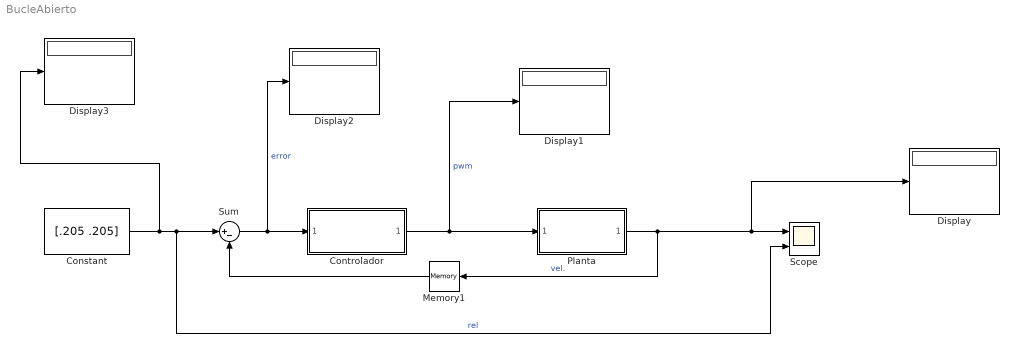
/*
 * Academic License - for use in teaching, academic research, and meeting
 * course requirements at degree granting institutions only.  Not for
 * government, commercial, or other organizational use.
 *
 * File: BucleAbierto.c
 *
 * Code generated for Simulink model 'BucleAbierto'.
 *
 * Model version                  : 1.7
 * Simulink Coder version         : 23.2 (R2023b) 01-Aug-2023
 * C/C++ source code generated on : Thu Nov 30 01:15:24 2023
 *
 * Target selection: ert.tlc
 * Embedded hardware selection: Atmel->AVR
 * Code generation objectives: Unspecified
 * Validation result: Not run
 */

#include "BucleAbierto.h"
#include <math.h>
#include "rt_nonfinite.h"
#include "rtwtypes.h"
#include "BucleAbierto_private.h"
#include "zero_crossing_types.h"

/* Block signals (default storage) */
B_BucleAbierto_T BucleAbierto_B;

/* Continuous states */
X_BucleAbierto_T BucleAbierto_X;

/* Disabled State Vector */
XDis_BucleAbierto_T BucleAbierto_XDis;

/* Block states (default storage) */
DW_BucleAbierto_T BucleAbierto_DW;

/* Previous zero-crossings (trigger) states */
PrevZCX_BucleAbierto_T BucleAbierto_PrevZCX;

/* Real-time model */
static RT_MODEL_BucleAbierto_T BucleAbierto_M_;
RT_MODEL_BucleAbierto_T *const BucleAbierto_M = &BucleAbierto_M_;

/*
 * This function updates continuous states using the ODE3 fixed-step
 * solver algorithm
 */
static void rt_ertODEUpdateContinuousStates(RTWSolverInfo *si )
{
  /* Solver Matrices */
  static const real_T rt_ODE3_A[3] = {
    1.0/2.0, 3.0/4.0, 1.0
  };

  static const real_T rt_ODE3_B[3][3] = {
    { 1.0/2.0, 0.0, 0.0 },

    { 0.0, 3.0/4.0, 0.0 },

    { 2.0/9.0, 1.0/3.0, 4.0/9.0 }
  };

  time_T t = rtsiGetT(si);
  time_T tnew = rtsiGetSolverStopTime(si);
  time_T h = rtsiGetStepSize(si);
  real_T *x = rtsiGetContStates(si);
  ODE3_IntgData *id = (ODE3_IntgData *)rtsiGetSolverData(si);
  real_T *y = id->y;
  real_T *f0 = id->f[0];
  real_T *f1 = id->f[1];
  real_T *f2 = id->f[2];
  real_T hB[3];
  int_T i;
  int_T nXc = 5;
  rtsiSetSimTimeStep(si,MINOR_TIME_STEP);

  /* Save the state values at time t in y, we'll use x as ynew. */
  (void) memcpy(y, x,
                (uint_T)nXc*sizeof(real_T));

  /* Assumes that rtsiSetT and ModelOutputs are up-to-date */
  /* f0 = f(t,y) */
  rtsiSetdX(si, f0);
  BucleAbierto_derivatives();

  /* f(:,2) = feval(odefile, t + hA(1), y + f*hB(:,1), args(:)(*)); */
  hB[0] = h * rt_ODE3_B[0][0];
  for (i = 0; i < nXc; i++) {
    x[i] = y[i] + (f0[i]*hB[0]);
  }

  rtsiSetT(si, t + h*rt_ODE3_A[0]);
  rtsiSetdX(si, f1);
  BucleAbierto_step();
  BucleAbierto_derivatives();

  /* f(:,3) = feval(odefile, t + hA(2), y + f*hB(:,2), args(:)(*)); */
  for (i = 0; i <= 1; i++) {
    hB[i] = h * rt_ODE3_B[1][i];
  }

  for (i = 0; i < nXc; i++) {
    x[i] = y[i] + (f0[i]*hB[0] + f1[i]*hB[1]);
  }

  rtsiSetT(si, t + h*rt_ODE3_A[1]);
  rtsiSetdX(si, f2);
  BucleAbierto_step();
  BucleAbierto_derivatives();

  /* tnew = t + hA(3);
     ynew = y + f*hB(:,3); */
  for (i = 0; i <= 2; i++) {
    hB[i] = h * rt_ODE3_B[2][i];
  }

  for (i = 0; i < nXc; i++) {
    x[i] = y[i] + (f0[i]*hB[0] + f1[i]*hB[1] + f2[i]*hB[2]);
  }

  rtsiSetT(si, tnew);
  rtsiSetSimTimeStep(si,MAJOR_TIME_STEP);
}

/* Model step function */
void BucleAbierto_step(void)
{
  real_T tmp;
  ZCEventType zcEvent;
  if (rtmIsMajorTimeStep(BucleAbierto_M)) {
    /* set solver stop time */
    rtsiSetSolverStopTime(&BucleAbierto_M->solverInfo,
                          ((BucleAbierto_M->Timing.clockTick0+1)*
      BucleAbierto_M->Timing.stepSize0));
  }                                    /* end MajorTimeStep */

  /* Update absolute time of base rate at minor time step */
  if (rtmIsMinorTimeStep(BucleAbierto_M)) {
    BucleAbierto_M->Timing.t[0] = rtsiGetT(&BucleAbierto_M->solverInfo);
  }

  if (rtmIsMajorTimeStep(BucleAbierto_M)) {
    /* Constant: '<Root>/Constant' */
    BucleAbierto_B.rel[0] = BucleAbierto_P.Constant_Value[0];
    BucleAbierto_B.rel[1] = BucleAbierto_P.Constant_Value[1];
  }

  /* TransferFcn: '<S101>/Rizq' */
  BucleAbierto_B.Rizq = BucleAbierto_P.Rizq_C * BucleAbierto_X.Rizq_CSTATE;

  /* TransferFcn: '<S101>/Rder' */
  BucleAbierto_B.Rder = BucleAbierto_P.Rder_C * BucleAbierto_X.Rder_CSTATE;
  if (rtmIsMajorTimeStep(BucleAbierto_M)) {
    /* SignalConversion generated from: '<Root>/Planta' */
    BucleAbierto_B.vel[0] = BucleAbierto_B.Rizq;
    BucleAbierto_B.vel[1] = BucleAbierto_B.Rder;

    /* Sum: '<Root>/Sum' incorporates:
     *  Constant: '<Root>/Constant'
     *  Memory: '<Root>/Memory1'
     */
    BucleAbierto_B.error[0] = BucleAbierto_B.rel[0] -
      BucleAbierto_DW.Memory1_PreviousInput[0];
    BucleAbierto_B.error[1] = BucleAbierto_B.rel[1] -
      BucleAbierto_DW.Memory1_PreviousInput[1];

    /* Gain: '<S41>/Proportional Gain' */
    BucleAbierto_B.ProportionalGain = BucleAbierto_P.PIDController_P *
      BucleAbierto_B.error[0];
  }

  /* Integrator: '<S36>/Integrator' */
  if (rtsiIsModeUpdateTimeStep(&BucleAbierto_M->solverInfo)) {
    zcEvent = rt_ZCFcn(RISING_ZERO_CROSSING,
                       &BucleAbierto_PrevZCX.Integrator_Reset_ZCE,
                       (0.0));

    /* evaluate zero-crossings */
    if (zcEvent != NO_ZCEVENT) {
      BucleAbierto_X.Integrator_CSTATE =
        BucleAbierto_P.PIDController_InitialConditio_c;
    }
  }

  if (rtmIsMajorTimeStep(BucleAbierto_M)) {
    /* Gain: '<S30>/Derivative Gain' */
    BucleAbierto_B.DerivativeGain = BucleAbierto_P.PIDController_D *
      BucleAbierto_B.error[0];
  }

  /* Integrator: '<S31>/Filter' */
  if (rtsiIsModeUpdateTimeStep(&BucleAbierto_M->solverInfo)) {
    zcEvent = rt_ZCFcn(RISING_ZERO_CROSSING,
                       &BucleAbierto_PrevZCX.Filter_Reset_ZCE,
                       (0.0));

    /* evaluate zero-crossings */
    if (zcEvent != NO_ZCEVENT) {
      BucleAbierto_X.Filter_CSTATE =
        BucleAbierto_P.PIDController_InitialConditionF;
    }
  }

  /* Gain: '<S39>/Filter Coefficient' incorporates:
   *  Integrator: '<S31>/Filter'
   *  Sum: '<S31>/SumD'
   */
  BucleAbierto_B.FilterCoefficient = (BucleAbierto_B.DerivativeGain -
    BucleAbierto_X.Filter_CSTATE) * BucleAbierto_P.PIDController_N;

  /* Sum: '<S45>/Sum' incorporates:
   *  Integrator: '<S36>/Integrator'
   */
  BucleAbierto_B.Saturation = (BucleAbierto_B.ProportionalGain +
    BucleAbierto_X.Integrator_CSTATE) + BucleAbierto_B.FilterCoefficient;

  /* Saturate: '<S43>/Saturation' */
  if (BucleAbierto_B.Saturation > BucleAbierto_P.PIDController_UpperSaturationLi)
  {
    /* Sum: '<S45>/Sum' incorporates:
     *  Saturate: '<S43>/Saturation'
     */
    BucleAbierto_B.Saturation = BucleAbierto_P.PIDController_UpperSaturationLi;
  } else if (BucleAbierto_B.Saturation <
             BucleAbierto_P.PIDController_LowerSaturationLi) {
    /* Sum: '<S45>/Sum' incorporates:
     *  Saturate: '<S43>/Saturation'
     */
    BucleAbierto_B.Saturation = BucleAbierto_P.PIDController_LowerSaturationLi;
  }

  /* End of Saturate: '<S43>/Saturation' */
  if (rtmIsMajorTimeStep(BucleAbierto_M)) {
    /* Gain: '<S89>/Proportional Gain' */
    BucleAbierto_B.ProportionalGain_d = BucleAbierto_P.PIDController1_P *
      BucleAbierto_B.error[1];
  }

  /* Sum: '<S93>/Sum' incorporates:
   *  Integrator: '<S84>/Integrator'
   */
  BucleAbierto_B.Saturation_f = BucleAbierto_B.ProportionalGain_d +
    BucleAbierto_X.Integrator_CSTATE_g;

  /* Saturate: '<S91>/Saturation' */
  if (BucleAbierto_B.Saturation_f >
      BucleAbierto_P.PIDController1_UpperSaturationL) {
    /* Sum: '<S93>/Sum' incorporates:
     *  Saturate: '<S91>/Saturation'
     */
    BucleAbierto_B.Saturation_f = BucleAbierto_P.PIDController1_UpperSaturationL;
  } else if (BucleAbierto_B.Saturation_f <
             BucleAbierto_P.PIDController1_LowerSaturationL) {
    /* Sum: '<S93>/Sum' incorporates:
     *  Saturate: '<S91>/Saturation'
     */
    BucleAbierto_B.Saturation_f = BucleAbierto_P.PIDController1_LowerSaturationL;
  }

  /* End of Saturate: '<S91>/Saturation' */
  if (rtmIsMajorTimeStep(BucleAbierto_M)) {
    /* SignalConversion generated from: '<Root>/Controlador' */
    BucleAbierto_B.pwm[0] = BucleAbierto_B.Saturation;
    BucleAbierto_B.pwm[1] = BucleAbierto_B.Saturation_f;
  }

  /* DataTypeConversion: '<S2>/Data Type Conversion' */
  tmp = floor(BucleAbierto_B.Saturation);
  if (rtIsNaN(tmp) || rtIsInf(tmp)) {
    tmp = 0.0;
  } else {
    tmp = fmod(tmp, 65536.0);
  }

  /* DataTypeConversion: '<S101>/Data Type Conversion' incorporates:
   *  DataTypeConversion: '<S2>/Data Type Conversion'
   */
  BucleAbierto_B.DataTypeConversion[0] = tmp < 0.0 ? -(int16_T)(uint16_T)-tmp :
    (int16_T)(uint16_T)tmp;

  /* DataTypeConversion: '<S2>/Data Type Conversion' */
  tmp = floor(BucleAbierto_B.Saturation_f);
  if (rtIsNaN(tmp) || rtIsInf(tmp)) {
    tmp = 0.0;
  } else {
    tmp = fmod(tmp, 65536.0);
  }

  /* DataTypeConversion: '<S101>/Data Type Conversion' incorporates:
   *  DataTypeConversion: '<S2>/Data Type Conversion'
   */
  BucleAbierto_B.DataTypeConversion[1] = tmp < 0.0 ? -(int16_T)(uint16_T)-tmp :
    (int16_T)(uint16_T)tmp;
  if (rtmIsMajorTimeStep(BucleAbierto_M)) {
    /* Gain: '<S33>/Integral Gain' */
    BucleAbierto_B.IntegralGain = BucleAbierto_P.PIDController_I *
      BucleAbierto_B.error[0];

    /* Gain: '<S81>/Integral Gain' */
    BucleAbierto_B.IntegralGain_c = BucleAbierto_P.PIDController1_I *
      BucleAbierto_B.error[1];
  }

  if (rtmIsMajorTimeStep(BucleAbierto_M)) {
    if (rtmIsMajorTimeStep(BucleAbierto_M)) {
      /* Update for Memory: '<Root>/Memory1' */
      BucleAbierto_DW.Memory1_PreviousInput[0] = BucleAbierto_B.vel[0];
      BucleAbierto_DW.Memory1_PreviousInput[1] = BucleAbierto_B.vel[1];
    }

    {                                  /* Sample time: [0.0s, 0.0s] */
      extmodeErrorCode_T errorCode = EXTMODE_SUCCESS;
      extmodeSimulationTime_T currentTime = (extmodeSimulationTime_T)
        ((BucleAbierto_M->Timing.clockTick0 * 1) + 0)
        ;

      /* Trigger External Mode event */
      errorCode = extmodeEvent(0,currentTime);
      if (errorCode != EXTMODE_SUCCESS) {
        /* Code to handle External Mode event errors
           may be added here */
      }
    }

    if (rtmIsMajorTimeStep(BucleAbierto_M)) {/* Sample time: [0.01s, 0.0s] */
      extmodeErrorCode_T errorCode = EXTMODE_SUCCESS;
      extmodeSimulationTime_T currentTime = (extmodeSimulationTime_T)
        ((BucleAbierto_M->Timing.clockTick1 * 1) + 0)
        ;

      /* Trigger External Mode event */
      errorCode = extmodeEvent(1,currentTime);
      if (errorCode != EXTMODE_SUCCESS) {
        /* Code to handle External Mode event errors
           may be added here */
      }
    }
  }                                    /* end MajorTimeStep */

  if (rtmIsMajorTimeStep(BucleAbierto_M)) {
    rt_ertODEUpdateContinuousStates(&BucleAbierto_M->solverInfo);

    /* Update absolute time for base rate */
    /* The "clockTick0" counts the number of times the code of this task has
     * been executed. The absolute time is the multiplication of "clockTick0"
     * and "Timing.stepSize0". Size of "clockTick0" ensures timer will not
     * overflow during the application lifespan selected.
     */
    ++BucleAbierto_M->Timing.clockTick0;
    BucleAbierto_M->Timing.t[0] = rtsiGetSolverStopTime
      (&BucleAbierto_M->solverInfo);

    {
      /* Update absolute timer for sample time: [0.01s, 0.0s] */
      /* The "clockTick1" counts the number of times the code of this task has
       * been executed. The resolution of this integer timer is 0.01, which is the step size
       * of the task. Size of "clockTick1" ensures timer will not overflow during the
       * application lifespan selected.
       */
      BucleAbierto_M->Timing.clockTick1++;
    }
  }                                    /* end MajorTimeStep */
}
